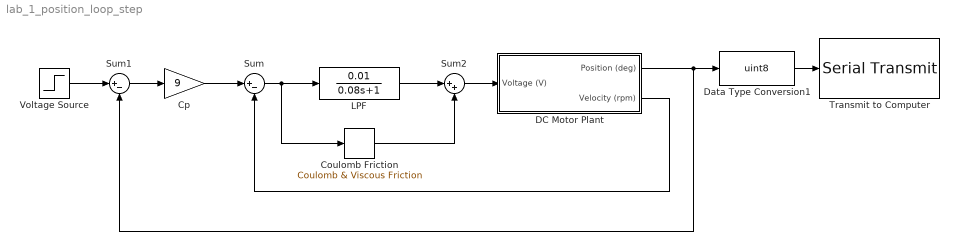
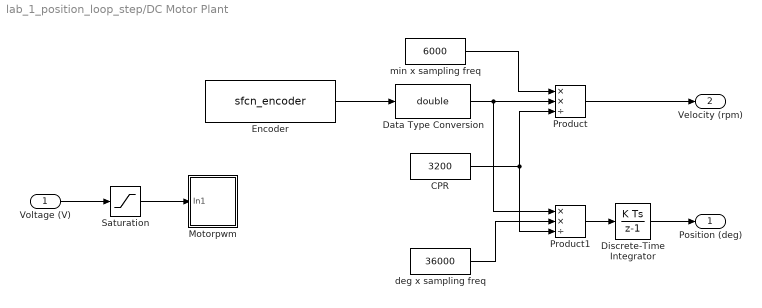
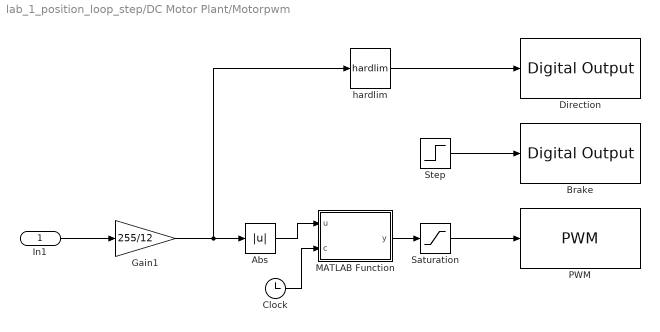
== matlab function lab_1_position_loop_step/DC Motor Plant/Motorpwm/MATLAB Function ==
function y = fcn(u,c)
%#codegen
if c<10
    y = u;
else
    y=0;
end

/*
 * Academic License - for use in teaching, academic research, and meeting
 * course requirements at degree granting institutions only.  Not for
 * government, commercial, or other organizational use.
 *
 * File: lab_1_position_loop_step.c
 *
 * Code generated for Simulink model 'lab_1_position_loop_step'.
 *
 * Model version                  : 1.39
 * Simulink Coder version         : 8.11 (R2016b) 25-Aug-2016
 * C/C++ source code generated on : Sat Mar 02 11:11:20 2019
 *
 * Target selection: ert.tlc
 * Embedded hardware selection: Atmel->AVR
 * Code generation objectives: Unspecified
 * Validation result: Not run
 */

#include "lab_1_position_loop_step.h"
#include "lab_1_position_loop_step_private.h"
#define lab_1_position_loop_PinNumber_n (13.0)
#define lab_1_position_loop_s_PinNumber (8.0)

/* Block signals (auto storage) */
BlockIO_lab_1_position_loop_ste lab_1_position_loop_step_B;

/* Continuous states */
ContinuousStates_lab_1_position lab_1_position_loop_step_X;

/* Block states (auto storage) */
D_Work_lab_1_position_loop_step lab_1_position_loop_step_DWork;

/* Real-time model */
RT_MODEL_lab_1_position_loop_st lab_1_position_loop_step_M_;
RT_MODEL_lab_1_position_loop_st *const lab_1_position_loop_step_M =
  &lab_1_position_loop_step_M_;

/*
 * This function updates continuous states using the ODE3 fixed-step
 * solver algorithm
 */
static void rt_ertODEUpdateContinuousStates(RTWSolverInfo *si )
{
  /* Solver Matrices */
  static const real_T rt_ODE3_A[3] = {
    1.0/2.0, 3.0/4.0, 1.0
  };

  static const real_T rt_ODE3_B[3][3] = {
    { 1.0/2.0, 0.0, 0.0 },

    { 0.0, 3.0/4.0, 0.0 },

    { 2.0/9.0, 1.0/3.0, 4.0/9.0 }
  };

  time_T t = rtsiGetT(si);
  time_T tnew = rtsiGetSolverStopTime(si);
  time_T h = rtsiGetStepSize(si);
  real_T *x = rtsiGetContStates(si);
  ODE3_IntgData *id = (ODE3_IntgData *)rtsiGetSolverData(si);
  real_T *y = id->y;
  real_T *f0 = id->f[0];
  real_T *f1 = id->f[1];
  real_T *f2 = id->f[2];
  real_T hB[3];
  int_T i;
  int_T nXc = 1;
  rtsiSetSimTimeStep(si,MINOR_TIME_STEP);

  /* Save the state values at time t in y, we'll use x as ynew. */
  (void) memcpy(y, x,
                (uint_T)nXc*sizeof(real_T));

  /* Assumes that rtsiSetT and ModelOutputs are up-to-date */
  /* f0 = f(t,y) */
  rtsiSetdX(si, f0);
  lab_1_position_loop_step_derivatives();

  /* f(:,2) = feval(odefile, t + hA(1), y + f*hB(:,1), args(:)(*)); */
  hB[0] = h * rt_ODE3_B[0][0];
  for (i = 0; i < nXc; i++) {
    x[i] = y[i] + (f0[i]*hB[0]);
  }

  rtsiSetT(si, t + h*rt_ODE3_A[0]);
  rtsiSetdX(si, f1);
  lab_1_position_loop_step_step();
  lab_1_position_loop_step_derivatives();

  /* f(:,3) = feval(odefile, t + hA(2), y + f*hB(:,2), args(:)(*)); */
  for (i = 0; i <= 1; i++) {
    hB[i] = h * rt_ODE3_B[1][i];
  }

  for (i = 0; i < nXc; i++) {
    x[i] = y[i] + (f0[i]*hB[0] + f1[i]*hB[1]);
  }

  rtsiSetT(si, t + h*rt_ODE3_A[1]);
  rtsiSetdX(si, f2);
  lab_1_position_loop_step_step();
  lab_1_position_loop_step_derivatives();

  /* tnew = t + hA(3);
     ynew = y + f*hB(:,3); */
  for (i = 0; i <= 2; i++) {
    hB[i] = h * rt_ODE3_B[2][i];
  }

  for (i = 0; i < nXc; i++) {
    x[i] = y[i] + (f0[i]*hB[0] + f1[i]*hB[1] + f2[i]*hB[2]);
  }

  rtsiSetT(si, tnew);
  rtsiSetSimTimeStep(si,MAJOR_TIME_STEP);
}

real_T rt_roundd_snf(real_T u)
{
  real_T y;
  if (fabs(u) < 4.503599627370496E+15) {
    if (u >= 0.5) {
      y = floor(u + 0.5);
    } else if (u > -0.5) {
      y = u * 0.0;
    } else {
      y = ceil(u - 0.5);
    }
  } else {
    y = u;
  }

  return y;
}

/* Model step function */
void lab_1_position_loop_step_step(void)
{
  /* local block i/o variables */
  real_T rtb_Product1;
  int16_T k;
  uint8_T dataIn;
  real_T rtb_Gain1_p;
  real_T rtb_Gain1_d;
  boolean_T exitg1;
  if (rtmIsMajorTimeStep(lab_1_position_loop_step_M)) {
    /* set solver stop time */
    rtsiSetSolverStopTime(&lab_1_position_loop_step_M->solverInfo,
                          ((lab_1_position_loop_step_M->Timing.clockTick0+1)*
      lab_1_position_loop_step_M->Timing.stepSize0));
  }                                    /* end MajorTimeStep */

  /* Update absolute time of base rate at minor time step */
  if (rtmIsMinorTimeStep(lab_1_position_loop_step_M)) {
    lab_1_position_loop_step_M->Timing.t[0] = rtsiGetT
      (&lab_1_position_loop_step_M->solverInfo);
  }

  if (rtmIsMajorTimeStep(lab_1_position_loop_step_M)) {
    /* Start for MATLABSystem: '<Root>/Transmit to Computer' incorporates:
     *  MATLABSystem: '<Root>/Transmit to Computer'
     */
    k = 0;
    exitg1 = false;
    while ((!exitg1) && (k < 8)) {
      if (lab_1_position_loop_step_DWork.obj.inputVarSize.f1[k] != 1UL) {
        for (k = 0; k < 8; k++) {
          lab_1_position_loop_step_DWork.obj.inputVarSize.f1[k] = 1UL;
        }

        exitg1 = true;
      } else {
        k++;
      }
    }

    /* DataTypeConversion: '<Root>/Data Type Conversion1' incorporates:
     *  DiscreteIntegrator: '<S2>/Discrete-Time Integrator'
     */
    rtb_Gain1_p = rt_roundd_snf
      (lab_1_position_loop_step_DWork.DiscreteTimeIntegrator_DSTATE);
    if (rtIsNaN(rtb_Gain1_p) || rtIsInf(rtb_Gain1_p)) {
      rtb_Gain1_p = 0.0;
    } else {
      rtb_Gain1_p = fmod(rtb_Gain1_p, 256.0);
    }

    /* Start for MATLABSystem: '<Root>/Transmit to Computer' incorporates:
     *  DataTypeConversion: '<Root>/Data Type Conversion1'
     *  MATLABSystem: '<Root>/Transmit to Computer'
     */
    dataIn = (uint8_T)(rtb_Gain1_p < 0.0 ? (int16_T)(uint8_T)-(int8_T)(uint8_T)
                       -rtb_Gain1_p : (int16_T)(uint8_T)rtb_Gain1_p);
    MW_Serial_write(lab_1_position_loop_step_DWork.obj.port, &dataIn, 1.0,
                    lab_1_position_loop_step_DWork.obj.dataSizeInBytes);

    /* S-Function (sfcn_encoder): '<S2>/Encoder' */
    sfcn_encoder_Outputs_wrapper( &lab_1_position_loop_step_B.Encoder,
      &lab_1_position_loop_step_DWork.Encoder_DSTATE,
      &lab_1_position_loop_step_P.Encoder_P1, 1,
      &lab_1_position_loop_step_P.Encoder_P2, 1,
      &lab_1_position_loop_step_P.Encoder_P3, 1);

    /* Step: '<Root>/Voltage Source' */
    if (((lab_1_position_loop_step_M->Timing.clockTick1) * 0.01) <
        lab_1_position_loop_step_P.VoltageSource_Time) {
      rtb_Gain1_p = lab_1_position_loop_step_P.VoltageSource_Y0;
    } else {
      rtb_Gain1_p = lab_1_position_loop_step_P.VoltageSource_YFinal;
    }

    /* End of Step: '<Root>/Voltage Source' */

    /* Sum: '<Root>/Sum' incorporates:
     *  Constant: '<S2>/CPR'
     *  Constant: '<S2>/min x sampling freq'
     *  DataTypeConversion: '<S2>/Data Type Conversion'
     *  DiscreteIntegrator: '<S2>/Discrete-Time Integrator'
     *  Gain: '<Root>/Cp'
     *  Product: '<S2>/Product'
     *  Sum: '<Root>/Sum1'
     */
    lab_1_position_loop_step_B.Sum = (rtb_Gain1_p -
      lab_1_position_loop_step_DWork.DiscreteTimeIntegrator_DSTATE) *
      lab_1_position_loop_step_P.Cp_Gain -
      lab_1_position_loop_step_P.minxsamplingfreq_Value * (real_T)
      lab_1_position_loop_step_B.Encoder / lab_1_position_loop_step_P.CPR_Value;

    /* Signum: '<S1>/Sign' */
    if (lab_1_position_loop_step_B.Sum < 0.0) {
      rtb_Gain1_p = -1.0;
    } else if (lab_1_position_loop_step_B.Sum > 0.0) {
      rtb_Gain1_p = 1.0;
    } else if (lab_1_position_loop_step_B.Sum == 0.0) {
      rtb_Gain1_p = 0.0;
    } else {
      rtb_Gain1_p = lab_1_position_loop_step_B.Sum;
    }

    /* End of Signum: '<S1>/Sign' */

    /* Sum: '<S1>/Sum' incorporates:
     *  Gain: '<S1>/Gain'
     *  Gain: '<S1>/Gain1'
     */
    lab_1_position_loop_step_B.Sum_n =
      lab_1_position_loop_step_P.CoulombFriction_offset * rtb_Gain1_p +
      lab_1_position_loop_step_P.CoulombFriction_gain *
      lab_1_position_loop_step_B.Sum;

    /* Product: '<S2>/Product1' incorporates:
     *  Constant: '<S2>/CPR'
     *  Constant: '<S2>/deg x sampling freq'
     *  DataTypeConversion: '<S2>/Data Type Conversion'
     */
    rtb_Product1 = (real_T)lab_1_position_loop_step_B.Encoder *
      lab_1_position_loop_step_P.degxsamplingfreq_Value /
      lab_1_position_loop_step_P.CPR_Value;
  }

  /* Sum: '<Root>/Sum2' incorporates:
   *  TransferFcn: '<Root>/LPF'
   */
  rtb_Gain1_p = lab_1_position_loop_step_P.LPF_C *
    lab_1_position_loop_step_X.LPF_CSTATE + lab_1_position_loop_step_B.Sum_n;

  /* Saturate: '<S2>/Saturation' */
  if (rtb_Gain1_p > lab_1_position_loop_step_P.Saturation_UpperSat) {
    rtb_Gain1_p = lab_1_position_loop_step_P.Saturation_UpperSat;
  } else {
    if (rtb_Gain1_p < lab_1_position_loop_step_P.Saturation_LowerSat) {
      rtb_Gain1_p = lab_1_position_loop_step_P.Saturation_LowerSat;
    }
  }

  /* End of Saturate: '<S2>/Saturation' */

  /* Gain: '<S3>/Gain1' */
  rtb_Gain1_p *= lab_1_position_loop_step_P.Gain1_Gain;

  /* Switch: '<S8>/Switch' incorporates:
   *  Constant: '<S8>/Constant'
   *  Constant: '<S8>/Constant1'
   */
  if (rtb_Gain1_p >= lab_1_position_loop_step_P.Switch_Threshold) {
    rtb_Gain1_d = lab_1_position_loop_step_P.Constant_Value;
  } else {
    rtb_Gain1_d = lab_1_position_loop_step_P.Constant1_Value;
  }

  /* End of Switch: '<S8>/Switch' */

  /* DataTypeConversion: '<S5>/Data Type Conversion' */
  if (rtb_Gain1_d < 256.0) {
    if (rtb_Gain1_d >= 0.0) {
      dataIn = (uint8_T)rtb_Gain1_d;
    } else {
      dataIn = 0U;
    }
  } else {
    dataIn = MAX_uint8_T;
  }

  /* End of DataTypeConversion: '<S5>/Data Type Conversion' */

  /* Start for MATLABSystem: '<S5>/Digital Output' incorporates:
   *  MATLABSystem: '<S5>/Digital Output'
   */
  writeDigitalPin((uint8_T)lab_1_position_loop_PinNumber_n, dataIn);

  /* MATLAB Function: '<S3>/MATLAB Function' incorporates:
   *  Abs: '<S3>/Abs'
   *  Clock: '<S3>/Clock'
   */
  /* MATLAB Function 'DC Motor Plant/Motorpwm/MATLAB Function': '<S6>:1' */
  /* '<S6>:1:3' if c<10 */
  if (lab_1_position_loop_step_M->Timing.t[0] < 10.0) {
    /* '<S6>:1:4' y = u; */
    rtb_Gain1_p = fabs(rtb_Gain1_p);
  } else {
    /* '<S6>:1:5' else */
    /* '<S6>:1:6' y=0; */
    rtb_Gain1_p = 0.0;
  }

  /* End of MATLAB Function: '<S3>/MATLAB Function' */
  if (rtmIsMajorTimeStep(lab_1_position_loop_step_M)) {
    /* Saturate: '<S3>/Saturation' */
    if (rtb_Gain1_p > lab_1_position_loop_step_P.Saturation_UpperSat_l) {
      /* DataTypeConversion: '<S7>/Data Type Conversion' */
      rtb_Gain1_p = lab_1_position_loop_step_P.Saturation_UpperSat_l;
    } else {
      if (rtb_Gain1_p < lab_1_position_loop_step_P.Saturation_LowerSat_g) {
        /* DataTypeConversion: '<S7>/Data Type Conversion' */
        rtb_Gain1_p = lab_1_position_loop_step_P.Saturation_LowerSat_g;
      }
    }

    /* End of Saturate: '<S3>/Saturation' */

    /* DataTypeConversion: '<S7>/Data Type Conversion' */
    if (rtb_Gain1_p < 256.0) {
      if (rtb_Gain1_p >= 0.0) {
        dataIn = (uint8_T)rtb_Gain1_p;
      } else {
        dataIn = 0U;
      }
    } else {
      dataIn = MAX_uint8_T;
    }

    /* S-Function (arduinoanalogoutput_sfcn): '<S7>/PWM' */
    MW_analogWrite(lab_1_position_loop_step_P.PWM_pinNumber, dataIn);
  }

  /* Step: '<S3>/Step' */
  if (lab_1_position_loop_step_M->Timing.t[0] <
      lab_1_position_loop_step_P.Step_Time) {
    rtb_Gain1_p = lab_1_position_loop_step_P.Step_Y0;
  } else {
    rtb_Gain1_p = lab_1_position_loop_step_P.Step_YFinal;
  }

  /* End of Step: '<S3>/Step' */

  /* DataTypeConversion: '<S4>/Data Type Conversion' */
  if (rtb_Gain1_p < 256.0) {
    if (rtb_Gain1_p >= 0.0) {
      dataIn = (uint8_T)rtb_Gain1_p;
    } else {
      dataIn = 0U;
    }
  } else {
    dataIn = MAX_uint8_T;
  }

  /* End of DataTypeConversion: '<S4>/Data Type Conversion' */

  /* Start for MATLABSystem: '<S4>/Digital Output' incorporates:
   *  MATLABSystem: '<S4>/Digital Output'
   */
  writeDigitalPin((uint8_T)lab_1_position_loop_s_PinNumber, dataIn);
  if (rtmIsMajorTimeStep(lab_1_position_loop_step_M)) {
    if (rtmIsMajorTimeStep(lab_1_position_loop_step_M)) {
      /* Update for DiscreteIntegrator: '<S2>/Discrete-Time Integrator' */
      lab_1_position_loop_step_DWork.DiscreteTimeIntegrator_DSTATE +=
        lab_1_position_loop_step_P.DiscreteTimeIntegrator_gainval * rtb_Product1;

      /* S-Function "sfcn_encoder_wrapper" Block: <S2>/Encoder */
      sfcn_encoder_Update_wrapper( &lab_1_position_loop_step_B.Encoder,
        &lab_1_position_loop_step_DWork.Encoder_DSTATE,
        &lab_1_position_loop_step_P.Encoder_P1, 1,
        &lab_1_position_loop_step_P.Encoder_P2, 1,
        &lab_1_position_loop_step_P.Encoder_P3, 1);
    }
  }                                    /* end MajorTimeStep */

  if (rtmIsMajorTimeStep(lab_1_position_loop_step_M)) {
    rt_ertODEUpdateContinuousStates(&lab_1_position_loop_step_M->solverInfo);

    /* Update absolute time for base rate */
    /* The "clockTick0" counts the number of times the code of this task has
     * been executed. The absolute time is the multiplication of "clockTick0"
     * and "Timing.stepSize0". Size of "clockTick0" ensures timer will not
     * overflow during the application lifespan selected.
     */
    ++lab_1_position_loop_step_M->Timing.clockTick0;
    lab_1_position_loop_step_M->Timing.t[0] = rtsiGetSolverStopTime
      (&lab_1_position_loop_step_M->solverInfo);

    {
      /* Update absolute timer for sample time: [0.01s, 0.0s] */
      /* The "clockTick1" counts the number of times the code of this task has
       * been executed. The resolution of this integer timer is 0.01, which is the step size
       * of the task. Size of "clockTick1" ensures timer will not overflow during the
       * application lifespan selected.
       */
      lab_1_position_loop_step_M->Timing.clockTick1++;
    }
  }                                    /* end MajorTimeStep */
}
